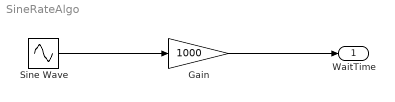
/*
 * Academic License - for use in teaching, academic research, and meeting
 * course requirements at degree granting institutions only.  Not for
 * government, commercial, or other organizational use.
 *
 * File: SineRateAlgo.c
 *
 * Code generated for Simulink model 'SineRateAlgo'.
 *
 * Model version                  : 1.1
 * Simulink Coder version         : 9.8 (R2022b) 13-May-2022
 * C/C++ source code generated on : Wed May 31 02:03:09 2023
 *
 * Target selection: ert.tlc
 * Embedded hardware selection: ARM Compatible->ARM Cortex-M
 * Code generation objectives:
 *    1. Execution efficiency
 *    2. RAM efficiency
 * Validation result: Not run
 */

#include "SineRateAlgo.h"
#include <math.h>
#include "rtwtypes.h"

/* Block signals and states (default storage) */
DW rtDW;

/* External outputs (root outports fed by signals with default storage) */
ExtY rtY;

/* Real-time model */
static RT_MODEL rtM_;
RT_MODEL *const rtM = &rtM_;

/* Model step function */
void SineRateAlgo_step(void)
{
  real_T lastSin_tmp;

  /* Sin: '<Root>/Sine Wave' */
  if (rtDW.systemEnable != 0) {
    lastSin_tmp = ((rtM->Timing.clockTick0) * 1.0);
    rtDW.lastSin = sin(lastSin_tmp);
    rtDW.lastCos = cos(lastSin_tmp);
    rtDW.systemEnable = 0;
  }

  /* Outport: '<Root>/WaitTime' incorporates:
   *  Gain: '<Root>/Gain'
   *  Sin: '<Root>/Sine Wave'
   */
  rtY.WaitTime = (((rtDW.lastSin * 0.54030230586813977 + rtDW.lastCos *
                    -0.8414709848078965) * 0.54030230586813977 + (rtDW.lastCos *
    0.54030230586813977 - rtDW.lastSin * -0.8414709848078965) *
                   0.8414709848078965) * 0.2 + 0.25) * 1000.0;

  /* Update for Sin: '<Root>/Sine Wave' */
  lastSin_tmp = rtDW.lastSin;
  rtDW.lastSin = rtDW.lastSin * 0.54030230586813977 + rtDW.lastCos *
    0.8414709848078965;
  rtDW.lastCos = rtDW.lastCos * 0.54030230586813977 - lastSin_tmp *
    0.8414709848078965;

  /* Update absolute time for base rate */
  /* The "clockTick0" counts the number of times the code of this task has
   * been executed. The resolution of this integer timer is 1.0, which is the step size
   * of the task. Size of "clockTick0" ensures timer will not overflow during the
   * application lifespan selected.
   */
  rtM->Timing.clockTick0++;
}
